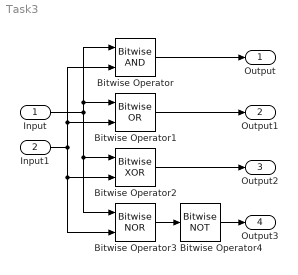
/*
 * File: Task3.c
 *
 * Code generated for Simulink model 'Task3'.
 *
 * Model version                  : 1.5
 * Simulink Coder version         : 9.5 (R2021a) 14-Nov-2020
 * C/C++ source code generated on : Mon Jan 29 12:07:34 2024
 *
 * Target selection: ert.tlc
 * Embedded hardware selection: Intel->x86-64 (Windows64)
 * Code generation objectives: Unspecified
 * Validation result: Not run
 */

#include "Task3.h"
#include "Task3_private.h"

/* External inputs (root inport signals with default storage) */
ExtU_Task3_T Task3_U;

/* External outputs (root outports fed by signals with default storage) */
ExtY_Task3_T Task3_Y;

/* Real-time model */
static RT_MODEL_Task3_T Task3_M_;
RT_MODEL_Task3_T *const Task3_M = &Task3_M_;
void MultiWordAnd(const uint32_T u1[], const uint32_T u2[], uint32_T y[],
                  int32_T n)
{
  int32_T i;
  for (i = 0; i < n; i++) {
    y[i] = u1[i] & u2[i];
  }
}

void MultiWordIor(const uint32_T u1[], const uint32_T u2[], uint32_T y[],
                  int32_T n)
{
  int32_T i;
  for (i = 0; i < n; i++) {
    y[i] = u1[i] | u2[i];
  }
}

void MultiWordXor(const uint32_T u1[], const uint32_T u2[], uint32_T y[],
                  int32_T n)
{
  int32_T i;
  for (i = 0; i < n; i++) {
    y[i] = u1[i] ^ u2[i];
  }
}

void MultiWordNot(const uint32_T u1[], uint32_T y[], int32_T n)
{
  int32_T i;
  for (i = 0; i < n; i++) {
    y[i] = ~u1[i];
  }
}

/* Model step function */
void Task3_step(void)
{
  int64m_T tmp;
  int64m_T tmp_0;

  /* S-Function (sfix_bitop): '<Root>/Bitwise Operator' incorporates:
   *  Inport: '<Root>/Input'
   *  Inport: '<Root>/Input1'
   *  Outport: '<Root>/Output'
   */
  MultiWordAnd(&Task3_U.Input.chunks[0U], &Task3_U.Input1.chunks[0U],
               &Task3_Y.Output.chunks[0U], 2);

  /* S-Function (sfix_bitop): '<Root>/Bitwise Operator1' incorporates:
   *  Inport: '<Root>/Input'
   *  Inport: '<Root>/Input1'
   *  Outport: '<Root>/Output1'
   */
  MultiWordIor(&Task3_U.Input.chunks[0U], &Task3_U.Input1.chunks[0U],
               &Task3_Y.Output1.chunks[0U], 2);

  /* S-Function (sfix_bitop): '<Root>/Bitwise Operator2' incorporates:
   *  Inport: '<Root>/Input'
   *  Inport: '<Root>/Input1'
   *  Outport: '<Root>/Output2'
   */
  tmp = Task3_U.Input;
  tmp_0 = Task3_U.Input1;
  MultiWordXor(&Task3_U.Input.chunks[0U], &Task3_U.Input1.chunks[0U],
               &Task3_Y.Output2.chunks[0U], 2);

  /* S-Function (sfix_bitop): '<Root>/Bitwise Operator3' incorporates:
   *  Inport: '<Root>/Input'
   *  Inport: '<Root>/Input1'
   */
  MultiWordIor(&Task3_U.Input.chunks[0U], &Task3_U.Input1.chunks[0U],
               &tmp_0.chunks[0U], 2);
  MultiWordNot(&tmp_0.chunks[0U], &tmp.chunks[0U], 2);

  /* S-Function (sfix_bitop): '<Root>/Bitwise Operator4' */
  MultiWordNot(&tmp.chunks[0U], &tmp_0.chunks[0U], 2);

  /* Outport: '<Root>/Output3' incorporates:
   *  S-Function (sfix_bitop): '<Root>/Bitwise Operator'
   *  S-Function (sfix_bitop): '<Root>/Bitwise Operator4'
   */
  Task3_Y.Output3 = tmp_0;
}
